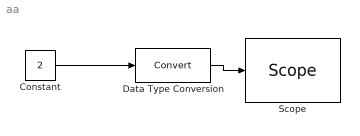
/*
 * aa.c
 *
 * Code generation for model "aa".
 *
 * Model version              : 1.2
 * Simulink Coder version : 8.11 (R2016b) 25-Aug-2016
 * C source code generated on : Mon Sep 14 10:18:53 2020
 *
 * Target selection: slrt.tlc
 * Note: GRT includes extra infrastructure and instrumentation for prototyping
 * Embedded hardware selection: Generic->32-bit x86 compatible
 * Code generation objectives: Unspecified
 * Validation result: Not run
 */

#include "rt_logging_mmi.h"
#include "aa_capi.h"
#include "aa.h"
#include "aa_private.h"

/* Block signals (auto storage) */
B_aa_T aa_B;

/* Block states (auto storage) */
DW_aa_T aa_DW;

/* Real-time model */
RT_MODEL_aa_T aa_M_;
RT_MODEL_aa_T *const aa_M = &aa_M_;

/* Model output function */
static void aa_output(void)
{
  /* ok to acquire for <S1>/S-Function */
  aa_DW.SFunction_IWORK.AcquireOK = 1;

  /* DataTypeConversion: '<Root>/Data Type Conversion' incorporates:
   *  Constant: '<Root>/Constant'
   */
  aa_B.DataTypeConversion = aa_P.Constant_Value;
}

/* Model update function */
static void aa_update(void)
{
  /* Update absolute time for base rate */
  /* The "clockTick0" counts the number of times the code of this task has
   * been executed. The absolute time is the multiplication of "clockTick0"
   * and "Timing.stepSize0". Size of "clockTick0" ensures timer will not
   * overflow during the application lifespan selected.
   * Timer of this task consists of two 32 bit unsigned integers.
   * The two integers represent the low bits Timing.clockTick0 and the high bits
   * Timing.clockTickH0. When the low bit overflows to 0, the high bits increment.
   */
  if (!(++aa_M->Timing.clockTick0)) {
    ++aa_M->Timing.clockTickH0;
  }

  aa_M->Timing.t[0] = aa_M->Timing.clockTick0 * aa_M->Timing.stepSize0 +
    aa_M->Timing.clockTickH0 * aa_M->Timing.stepSize0 * 4294967296.0;
}
